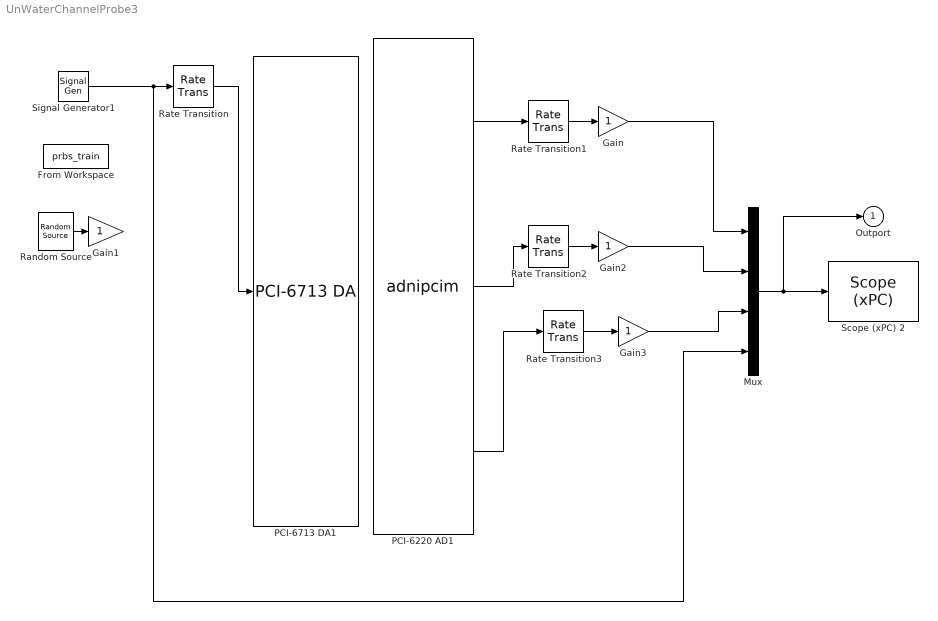
/*
 * UnWaterChannelProbe3.c
 *
 * Code generation for model "UnWaterChannelProbe3.mdl".
 *
 * Model version              : 1.208
 * Simulink Coder version : 8.0 (R2011a) 09-Mar-2011
 * C source code generated on : Tue Nov 05 15:37:13 2013
 *
 * Target selection: xpctarget.tlc
 * Note: GRT includes extra infrastructure and instrumentation for prototyping
 * Embedded hardware selection: Generic->32-bit x86 compatible
 * Code generation objectives: Unspecified
 * Validation result: Not run
 */

#include "rt_logging_mmi.h"
#include "UnWaterChannelProbe3_capi.h"
#include "UnWaterChannelProbe3.h"
#include "UnWaterChannelProbe3_private.h"
#include <stdio.h>
#include "UnWaterChannelProbe3_dt.h"

/* Block signals (auto storage) */
BlockIO_UnWaterChannelProbe3 UnWaterChannelProbe3_B;

/* Block states (auto storage) */
D_Work_UnWaterChannelProbe3 UnWaterChannelProbe3_DWork;

/* External outputs (root outports fed by signals with auto storage) */
ExternalOutputs_UnWaterChannelProbe3 UnWaterChannelProbe3_Y;

/* Real-time model */
rtModel_UnWaterChannelProbe3 UnWaterChannelProbe3_rtM_;
rtModel_UnWaterChannelProbe3 *const UnWaterChannelProbe3_rtM =
  &UnWaterChannelProbe3_rtM_;
void RandSrcInitState_U_64(const uint32_T seed[], real_T state[], int32_T nChans)
{
  int32_T i;
  uint32_T j;
  int32_T k;
  int32_T n;
  real_T d;

  /* Start for S-Function (sdsprandsrc2): '<Root>/Random Source' */
  /* RandSrcInitState_U_64 */
  for (i = 0; i < nChans; i++) {
    j = seed[i] != 0U ? seed[i] : 2147483648U;
    state[35 * i + 34] = (real_T)j;
    for (k = 0; k < 32; k++) {
      d = 0.0;
      for (n = 0; n < 53; n++) {
        j ^= j << 13;
        j ^= j >> 17;
        j ^= j << 5;
        d = (real_T)((int32_T)(j >> 19) & 1) + (d + d);
      }

      state[35 * i + k] = ldexp(d, -53);
    }

    state[35 * i + 32] = 0.0;
    state[35 * i + 33] = 0.0;
  }

  /* End of S-Function (sdsprandsrc2): '<Root>/Random Source' */
}

void RandSrc_U_D(real_T y[], const real_T minVec[], int32_T minLen, const real_T
                 maxVec[], int32_T maxLen, real_T state[], int32_T nChans,
                 int32_T nSamps)
{
  int32_T one;
  int32_T lsw;
  int8_T (*onePtr)[];
  int32_T chan;
  real_T min;
  real_T max;
  int32_T samps;
  real_T d;
  int32_T i;
  uint32_T j;

  /* Start for S-Function (sdsprandsrc2): '<Root>/Random Source' */
  /* RandSrc_U_D */
  one = 1;
  onePtr = (int8_T (*)[])&one;
  lsw = ((*onePtr)[0U] == 0);
  for (chan = 0; chan < nChans; chan++) {
    min = minVec[minLen > 1 ? chan : 0];
    max = maxVec[maxLen > 1 ? chan : 0];
    max -= min;
    d = state[chan * 35 + 33];
    i = (int32_T)((uint32_T)d & 31U);
    d = state[chan * 35 + 34];
    j = (uint32_T)d;
    for (samps = 0; samps < nSamps; samps++) {
      /* "Subtract with borrow" generator */
      d = state[((i + 20) & 31) + chan * 35];
      d -= state[((i + 5) & 31) + chan * 35];
      d -= state[chan * 35 + 32];
      if (d >= 0.0) {
        state[chan * 35 + 32] = 0.0;
      } else {
        d++;

        /* set 1 in LSB */
        state[chan * 35 + 32] = 1.1102230246251565E-16;
      }

      state[chan * 35 + i] = d;
      i = (i + 1) & 31;

      /* XOR with shift register sequence */
      (*(int32_T (*)[])&d)[lsw] ^= (int32_T)j;
      j ^= j << 13;
      j ^= j >> 17;
      j ^= j << 5;
      (*(int32_T (*)[])&d)[lsw ^ 1] ^= (int32_T)(j & 1048575U);
      y[chan * nSamps + samps] = max * d + min;
    }

    state[chan * 35 + 33] = (real_T)i;
    state[chan * 35 + 34] = (real_T)j;
  }

  /* End of S-Function (sdsprandsrc2): '<Root>/Random Source' */
}

void RandSrcCreateSeeds_64(uint32_T initSeed, uint32_T seedArray[], int32_T
  numSeeds)
{
  real_T state[35];
  real_T tmp;
  real_T min;
  real_T max;
  int32_T i;
  real_T tmp_0;

  /* Start for S-Function (sdsprandsrc2): '<Root>/Random Source' */
  /* RandSrcCreateSeeds_64 */
  min = 0.0;
  max = 1.0;
  RandSrcInitState_U_64(&initSeed, state, 1);
  for (i = 0; i < numSeeds; i++) {
    RandSrc_U_D(&tmp, &min, 1, &max, 1, state, 1, 1);
    tmp_0 = tmp * 2.147483648E+9;
    seedArray[i] = (uint32_T)tmp_0;
  }

  /* End of S-Function (sdsprandsrc2): '<Root>/Random Source' */
}

/* Model output function */
void UnWaterChannelProbe3_output(int_T tid)
{
  real_T temp;

  /* Level2 S-Function Block: '<Root>/PCI-6220 AD1' (adnipcim) */
  {
    SimStruct *rts = UnWaterChannelProbe3_rtM->childSfunctions[0];
    sfcnOutputs(rts, 1);
  }

  /* RateTransition: '<Root>/Rate Transition1' */
  UnWaterChannelProbe3_B.RateTransition1 = UnWaterChannelProbe3_B.PCI6220AD1_o1;

  /* Gain: '<Root>/Gain' */
  UnWaterChannelProbe3_B.Gain = UnWaterChannelProbe3_P.Gain_Gain *
    UnWaterChannelProbe3_B.RateTransition1;

  /* RateTransition: '<Root>/Rate Transition2' */
  UnWaterChannelProbe3_B.RateTransition2 = UnWaterChannelProbe3_B.PCI6220AD1_o2;

  /* Gain: '<Root>/Gain2' */
  UnWaterChannelProbe3_B.Gain2 = UnWaterChannelProbe3_P.Gain2_Gain *
    UnWaterChannelProbe3_B.RateTransition2;

  /* RateTransition: '<Root>/Rate Transition3' */
  UnWaterChannelProbe3_B.RateTransition3 = UnWaterChannelProbe3_B.PCI6220AD1_o3;

  /* Gain: '<Root>/Gain3' */
  UnWaterChannelProbe3_B.Gain3 = UnWaterChannelProbe3_P.Gain3_Gain *
    UnWaterChannelProbe3_B.RateTransition3;

  /* SignalGenerator: '<Root>/Signal Generator1' */
  temp = UnWaterChannelProbe3_P.SignalGenerator1_Frequency *
    UnWaterChannelProbe3_rtM->Timing.t[0];
  if (temp - floor(temp) >= 0.5) {
    UnWaterChannelProbe3_B.SignalGenerator1 =
      UnWaterChannelProbe3_P.SignalGenerator1_Amplitude;
  } else {
    UnWaterChannelProbe3_B.SignalGenerator1 =
      -UnWaterChannelProbe3_P.SignalGenerator1_Amplitude;
  }

  /* End of SignalGenerator: '<Root>/Signal Generator1' */

  /* Outport: '<Root>/Outport' */
  UnWaterChannelProbe3_Y.Outport[0] = UnWaterChannelProbe3_B.Gain;
  UnWaterChannelProbe3_Y.Outport[1] = UnWaterChannelProbe3_B.Gain2;
  UnWaterChannelProbe3_Y.Outport[2] = UnWaterChannelProbe3_B.Gain3;
  UnWaterChannelProbe3_Y.Outport[3] = UnWaterChannelProbe3_B.SignalGenerator1;

  /* RateTransition: '<Root>/Rate Transition' */
  UnWaterChannelProbe3_B.RateTransition =
    UnWaterChannelProbe3_B.SignalGenerator1;

  /* Level2 S-Function Block: '<Root>/PCI-6713 DA1' (danipci671x) */
  {
    SimStruct *rts = UnWaterChannelProbe3_rtM->childSfunctions[1];
    sfcnOutputs(rts, 1);
  }

  /* ok to acquire for <S1>/S-Function */
  UnWaterChannelProbe3_DWork.SFunction_IWORK.AcquireOK = 1;

  /* FromWorkspace: '<Root>/From Workspace' */
  {
    real_T t = UnWaterChannelProbe3_rtM->Timing.t[1];
    real_T *pTimeValues = (real_T *)
      UnWaterChannelProbe3_DWork.FromWorkspace_PWORK.TimePtr;
    real_T *pDataValues = (real_T *)
      UnWaterChannelProbe3_DWork.FromWorkspace_PWORK.DataPtr;
    if (t < pTimeValues[0]) {
      UnWaterChannelProbe3_B.FromWorkspace = 0.0;
    } else if (t == pTimeValues[499]) {
      UnWaterChannelProbe3_B.FromWorkspace = pDataValues[499];
    } else if (t > pTimeValues[499]) {
      UnWaterChannelProbe3_B.FromWorkspace = 0.0;
    } else {
      int_T currTimeIndex =
        UnWaterChannelProbe3_DWork.FromWorkspace_IWORK.PrevIndex;
      if (t < pTimeValues[currTimeIndex]) {
        while (t < pTimeValues[currTimeIndex]) {
          currTimeIndex--;
        }
      } else {
        while (t >= pTimeValues[currTimeIndex + 1]) {
          currTimeIndex++;
        }
      }

      UnWaterChannelProbe3_B.FromWorkspace = pDataValues[currTimeIndex];
      UnWaterChannelProbe3_DWork.FromWorkspace_IWORK.PrevIndex = currTimeIndex;
    }
  }

  /* S-Function (sdsprandsrc2): '<Root>/Random Source' */
  RandSrc_U_D(&UnWaterChannelProbe3_B.RandomSource,
              &UnWaterChannelProbe3_P.RandomSource_MinRTP, 1,
              &UnWaterChannelProbe3_P.RandomSource_MaxRTP, 1,
              UnWaterChannelProbe3_DWork.RandomSource_STATE_DWORK, 1, 1);

  /* Gain: '<Root>/Gain1' */
  UnWaterChannelProbe3_B.Gain1 = UnWaterChannelProbe3_P.Gain1_Gain *
    UnWaterChannelProbe3_B.RandomSource;

  /* tid is required for a uniform function interface.
   * Argument tid is not used in the function. */
  UNUSED_PARAMETER(tid);
}

/* Model update function */
void UnWaterChannelProbe3_update(int_T tid)
{
  /* Update absolute time for base rate */
  /* The "clockTick0" counts the number of times the code of this task has
   * been executed. The absolute time is the multiplication of "clockTick0"
   * and "Timing.stepSize0". Size of "clockTick0" ensures timer will not
   * overflow during the application lifespan selected.
   * Timer of this task consists of two 32 bit unsigned integers.
   * The two integers represent the low bits Timing.clockTick0 and the high bits
   * Timing.clockTickH0. When the low bit overflows to 0, the high bits increment.
   */
  if (!(++UnWaterChannelProbe3_rtM->Timing.clockTick0)) {
    ++UnWaterChannelProbe3_rtM->Timing.clockTickH0;
  }

  UnWaterChannelProbe3_rtM->Timing.t[0] =
    UnWaterChannelProbe3_rtM->Timing.clockTick0 *
    UnWaterChannelProbe3_rtM->Timing.stepSize0 +
    UnWaterChannelProbe3_rtM->Timing.clockTickH0 *
    UnWaterChannelProbe3_rtM->Timing.stepSize0 * 4294967296.0;

  {
    /* Update absolute timer for sample time: [0.0001s, 0.0s] */
    /* The "clockTick1" counts the number of times the code of this task has
     * been executed. The absolute time is the multiplication of "clockTick1"
     * and "Timing.stepSize1". Size of "clockTick1" ensures timer will not
     * overflow during the application lifespan selected.
     * Timer of this task consists of two 32 bit unsigned integers.
     * The two integers represent the low bits Timing.clockTick1 and the high bits
     * Timing.clockTickH1. When the low bit overflows to 0, the high bits increment.
     */
    if (!(++UnWaterChannelProbe3_rtM->Timing.clockTick1)) {
      ++UnWaterChannelProbe3_rtM->Timing.clockTickH1;
    }

    UnWaterChannelProbe3_rtM->Timing.t[1] =
      UnWaterChannelProbe3_rtM->Timing.clockTick1 *
      UnWaterChannelProbe3_rtM->Timing.stepSize1 +
      UnWaterChannelProbe3_rtM->Timing.clockTickH1 *
      UnWaterChannelProbe3_rtM->Timing.stepSize1 * 4294967296.0;
  }

  /* tid is required for a uniform function interface.
   * Argument tid is not used in the function. */
  UNUSED_PARAMETER(tid);
}
